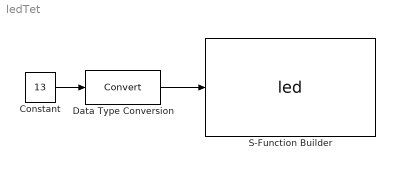
/*
 * Academic License - for use in teaching, academic research, and meeting
 * course requirements at degree granting institutions only.  Not for
 * government, commercial, or other organizational use.
 *
 * File: ledTet.c
 *
 * Code generated for Simulink model 'ledTet'.
 *
 * Model version                  : 1.4
 * Simulink Coder version         : 8.10 (R2016a) 10-Feb-2016
 * C/C++ source code generated on : Mon Dec 19 18:24:14 2016
 *
 * Target selection: ert.tlc
 * Embedded hardware selection: Atmel->AVR
 * Code generation objectives: Unspecified
 * Validation result: Not run
 */

#include "ledTet.h"
#include "ledTet_private.h"
#include "ledTet_dt.h"

/* Block signals (auto storage) */
B_ledTet_T ledTet_B;

/* Block states (auto storage) */
DW_ledTet_T ledTet_DW;

/* Real-time model */
RT_MODEL_ledTet_T ledTet_M_;
RT_MODEL_ledTet_T *const ledTet_M = &ledTet_M_;

/* Model step function */
void ledTet_step(void)
{
  real_T tmp;

  /* DataTypeConversion: '<Root>/Data Type Conversion' incorporates:
   *  Constant: '<Root>/Constant'
   */
  tmp = floor(ledTet_P.Constant_Value);
  if (rtIsNaN(tmp) || rtIsInf(tmp)) {
    tmp = 0.0;
  } else {
    tmp = fmod(tmp, 256.0);
  }

  ledTet_B.DataTypeConversion = (int8_T)(tmp < 0.0 ? (int16_T)(int8_T)-(int8_T)
    (uint8_T)-tmp : (int16_T)(int8_T)(uint8_T)tmp);

  /* End of DataTypeConversion: '<Root>/Data Type Conversion' */

  /* S-Function (led): '<Root>/S-Function Builder' */
  led_Outputs_wrapper(&ledTet_B.DataTypeConversion,
                      &ledTet_DW.SFunctionBuilder_DSTATE);

  /* S-Function "led_wrapper" Block: <Root>/S-Function Builder */
  led_Update_wrapper(&ledTet_B.DataTypeConversion,
                     &ledTet_DW.SFunctionBuilder_DSTATE);

  /* External mode */
  rtExtModeUploadCheckTrigger(1);

  {                                    /* Sample time: [0.2s, 0.0s] */
    rtExtModeUpload(0, ledTet_M->Timing.taskTime0);
  }

  /* signal main to stop simulation */
  {                                    /* Sample time: [0.2s, 0.0s] */
    if ((rtmGetTFinal(ledTet_M)!=-1) &&
        !((rtmGetTFinal(ledTet_M)-ledTet_M->Timing.taskTime0) >
          ledTet_M->Timing.taskTime0 * (DBL_EPSILON))) {
      rtmSetErrorStatus(ledTet_M, "Simulation finished");
    }

    if (rtmGetStopRequested(ledTet_M)) {
      rtmSetErrorStatus(ledTet_M, "Simulation finished");
    }
  }

  /* Update absolute time for base rate */
  /* The "clockTick0" counts the number of times the code of this task has
   * been executed. The absolute time is the multiplication of "clockTick0"
   * and "Timing.stepSize0". Size of "clockTick0" ensures timer will not
   * overflow during the application lifespan selected.
   */
  ledTet_M->Timing.taskTime0 =
    (++ledTet_M->Timing.clockTick0) * ledTet_M->Timing.stepSize0;
}
